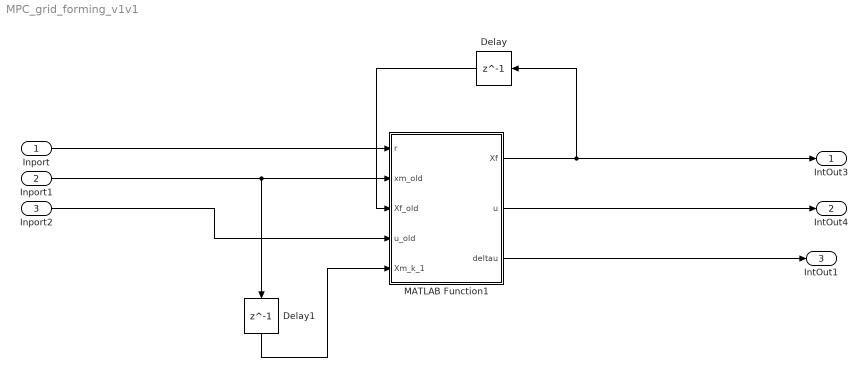
== matlab function MPC_grid_forming_v1v1/MATLAB Function1 ==
function [Xf,u,deltau] = fcn(r,xm_old,Xf_old,u_old,Xm_k_1)

in = [];
in = coder.load('Grid_forming.mat'); 
%in = coder.load('DC_volatge.mat'); 
%% there is issue there which need to be fixed %%%
gamma=[(in.u_max - u_old);(-in.u_min + u_old); in.deltau_max; -in.deltau_min];
eta=QPhild(in.Omega,in.Psi*(in.Xf+Xf_old),in.M,gamma)
%%
%eta = -(in.Omega\in.Psi)*(in.Xf+Xf_old)  %%% original %%% 

deltau=in.Lzerot*eta; %%%% input signal 

%%
u=in.up+u_old+deltau;
%%%%
y = xm_old;
xm = xm_old;
y_delta_k = y-Xm_k_1;
Xf=[y_delta_k;y-r];

/*
 * Academic License - for use in teaching, academic research, and meeting
 * course requirements at degree granting institutions only.  Not for
 * government, commercial, or other organizational use.
 *
 * File: MPC_grid_forming_v1v1.c
 *
 * Code generated for Simulink model 'MPC_grid_forming_v1v1'.
 *
 * Model version                  : 1.31
 * Simulink Coder version         : 9.2 (R2019b) 18-Jul-2019
 * C/C++ source code generated on : Tue Oct 26 07:50:22 2021
 *
 * Target selection: ert.tlc
 * Embedded hardware selection: 32-bit Generic
 * Code generation objectives: Unspecified
 * Validation result: Not run
 */

#include "MPC_grid_forming_v1v1.h"
#include "MPC_grid_forming_v1v1_private.h"

/* Block states (default storage) */
D_Work_MPC_grid_forming_v1v1 MPC_grid_forming_v1v1_DWork;

/* External inputs (root inport signals with default storage) */
ExternalInputs_MPC_grid_forming MPC_grid_forming_v1v1_U;

/* External outputs (root outports fed by signals with default storage) */
ExternalOutputs_MPC_grid_formin MPC_grid_forming_v1v1_Y;

/* Real-time model */
RT_MODEL_MPC_grid_forming_v1v1 MPC_grid_forming_v1v1_M_;
RT_MODEL_MPC_grid_forming_v1v1 *const MPC_grid_forming_v1v1_M =
  &MPC_grid_forming_v1v1_M_;

/* Forward declaration for local functions */
static void MPC_grid_forming_v1v1_xgetrf(real_T A[16], int32_T ipiv[4], int32_T *
  info);
static void MPC_grid_forming_v1v1_mldivide(const real_T A[16], real_T B[4]);
static void MPC_grid_forming_v1v_mldivide_p(const real_T A[16], real_T B[16]);

/* Function for MATLAB Function: '<Root>/MATLAB Function1' */
static void MPC_grid_forming_v1v1_xgetrf(real_T A[16], int32_T ipiv[4], int32_T *
  info)
{
  int32_T j;
  int32_T c;
  int32_T ix;
  real_T smax;
  int32_T k;
  int32_T iy;
  real_T y;
  int32_T c_ix;
  int32_T d;
  int32_T ijA;
  ipiv[0] = 1;
  ipiv[1] = 2;
  ipiv[2] = 3;
  ipiv[3] = 4;
  *info = 0;
  for (j = 0; j < 3; j++) {
    c = j * 5;
    iy = 0;
    ix = c;
    smax = fabs(A[c]);
    for (k = 2; k <= 4 - j; k++) {
      ix++;
      y = fabs(A[ix]);
      if (y > smax) {
        iy = k - 1;
        smax = y;
      }
    }

    if (A[c + iy] != 0.0) {
      if (iy != 0) {
        iy += j;
        ipiv[j] = iy + 1;
        smax = A[j];
        A[j] = A[iy];
        A[iy] = smax;
        ix = j + 4;
        iy += 4;
        smax = A[ix];
        A[ix] = A[iy];
        A[iy] = smax;
        ix += 4;
        iy += 4;
        smax = A[ix];
        A[ix] = A[iy];
        A[iy] = smax;
        ix += 4;
        iy += 4;
        smax = A[ix];
        A[ix] = A[iy];
        A[iy] = smax;
      }

      iy = (c - j) + 4;
      for (ix = c + 1; ix < iy; ix++) {
        A[ix] /= A[c];
      }
    } else {
      *info = j + 1;
    }

    iy = c;
    ix = c + 4;
    for (k = 0; k <= 2 - j; k++) {
      if (A[ix] != 0.0) {
        smax = -A[ix];
        c_ix = c + 1;
        d = (iy - j) + 8;
        for (ijA = iy + 5; ijA < d; ijA++) {
          A[ijA] += A[c_ix] * smax;
          c_ix++;
        }
      }

      ix += 4;
      iy += 4;
    }
  }

  if ((*info == 0) && (!(A[15] != 0.0))) {
    *info = 4;
  }
}

/* Function for MATLAB Function: '<Root>/MATLAB Function1' */
static void MPC_grid_forming_v1v1_mldivide(const real_T A[16], real_T B[4])
{
  real_T temp;
  real_T b_A[16];
  int32_T ipiv[4];
  int32_T info;
  memcpy(&b_A[0], &A[0], sizeof(real_T) << 4U);
  MPC_grid_forming_v1v1_xgetrf(b_A, ipiv, &info);
  if (ipiv[0] != 1) {
    temp = B[0];
    B[0] = B[ipiv[0] - 1];
    B[ipiv[0] - 1] = temp;
  }

  if (ipiv[1] != 2) {
    temp = B[1];
    B[1] = B[ipiv[1] - 1];
    B[ipiv[1] - 1] = temp;
  }

  if (ipiv[2] != 3) {
    temp = B[2];
    B[2] = B[ipiv[2] - 1];
    B[ipiv[2] - 1] = temp;
  }

  if (B[0] != 0.0) {
    for (info = 1; info + 1 < 5; info++) {
      B[info] -= B[0] * b_A[info];
    }
  }

  if (B[1] != 0.0) {
    for (info = 2; info + 1 < 5; info++) {
      B[info] -= b_A[info + 4] * B[1];
    }
  }

  if (B[2] != 0.0) {
    for (info = 3; info + 1 < 5; info++) {
      B[info] -= b_A[info + 8] * B[2];
    }
  }

  if (B[3] != 0.0) {
    B[3] /= b_A[15];
    for (info = 0; info < 3; info++) {
      B[info] -= b_A[info + 12] * B[3];
    }
  }

  if (B[2] != 0.0) {
    B[2] /= b_A[10];
    for (info = 0; info < 2; info++) {
      B[info] -= b_A[info + 8] * B[2];
    }
  }

  if (B[1] != 0.0) {
    B[1] /= b_A[5];
    B[0] -= B[1] * b_A[4];
  }

  if (B[0] != 0.0) {
    B[0] /= b_A[0];
  }
}

/* Function for MATLAB Function: '<Root>/MATLAB Function1' */
static void MPC_grid_forming_v1v_mldivide_p(const real_T A[16], real_T B[16])
{
  real_T temp;
  int32_T ip;
  real_T b_A[16];
  int32_T ipiv[4];
  int32_T info;
  int32_T i;
  int32_T tmp;
  memcpy(&b_A[0], &A[0], sizeof(real_T) << 4U);
  MPC_grid_forming_v1v1_xgetrf(b_A, ipiv, &info);
  for (info = 0; info < 3; info++) {
    if (info + 1 != ipiv[info]) {
      ip = ipiv[info] - 1;
      temp = B[info];
      B[info] = B[ip];
      B[ip] = temp;
      temp = B[info + 4];
      B[info + 4] = B[ip + 4];
      B[ip + 4] = temp;
      temp = B[info + 8];
      B[info + 8] = B[ip + 8];
      B[ip + 8] = temp;
      temp = B[info + 12];
      B[info + 12] = B[ip + 12];
      B[ip + 12] = temp;
    }
  }

  for (info = 0; info < 4; info++) {
    ip = info << 2;
    if (B[ip] != 0.0) {
      for (i = 2; i < 5; i++) {
        tmp = (i + ip) - 1;
        B[tmp] -= b_A[i - 1] * B[ip];
      }
    }

    if (B[ip + 1] != 0.0) {
      for (i = 3; i < 5; i++) {
        tmp = (i + ip) - 1;
        B[tmp] -= B[ip + 1] * b_A[i + 3];
      }
    }

    if (B[ip + 2] != 0.0) {
      B[ip + 3] -= B[ip + 2] * b_A[11];
    }
  }

  for (info = 0; info < 4; info++) {
    ip = info << 2;
    if (B[ip + 3] != 0.0) {
      B[ip + 3] /= b_A[15];
      for (i = 0; i < 3; i++) {
        tmp = i + ip;
        B[tmp] -= B[ip + 3] * b_A[i + 12];
      }
    }

    if (B[ip + 2] != 0.0) {
      B[ip + 2] /= b_A[10];
      for (i = 0; i < 2; i++) {
        tmp = i + ip;
        B[tmp] -= B[ip + 2] * b_A[i + 8];
      }
    }

    if (B[ip + 1] != 0.0) {
      B[ip + 1] /= b_A[5];
      B[ip] -= B[ip + 1] * b_A[4];
    }

    if (B[ip] != 0.0) {
      B[ip] /= b_A[0];
    }
  }
}

/* Model step function */
void MPC_grid_forming_v1v1_step(void)
{
  real_T b_gamma[4];
  real_T eta[4];
  real_T y[4];
  real_T kk;
  real_T P[16];
  real_T d[4];
  real_T b[16];
  static const real_T e[16] = { 0.00774590859744585, -0.0077456762201879269,
    0.0077454438499013206, -0.0077452114865858247, -0.00774590859744585,
    0.0077456762201879269, -0.0077454438499013206, 0.0077452114865858247,
    0.00774590859744585, -0.0077456762201879269, 0.0077454438499013206,
    -0.0077452114865858247, -0.00774590859744585, 0.0077456762201879269,
    -0.0077454438499013206, 0.0077452114865858247 };

  int32_T b_i;
  int32_T i;
  real_T rtb_Xf_idx_0;
  real_T rtb_Xf_idx_1;
  int32_T P_tmp;
  int32_T P_tmp_tmp;
  static const real_T c[16] = { -0.002000185860327016, 1.8582634387492393E-7,
    -1.8579236556403315E-7, 1.8575839208293112E-7, 1.8582634387492393E-7,
    -0.0020001857923671188, 1.8575839519194639E-7, -1.857244280940364E-7,
    -1.8579236556403315E-7, 1.8575839519194639E-7, -0.0020001857244296485,
    1.85690468932722E-7, 1.8575839208293112E-7, -1.857244280940364E-7,
    1.85690468932722E-7, -0.0020001856565145986 };

  static const real_T a[8] = { 0.0082398634660753, -0.0082384104982132413,
    0.00823695773184475, -0.0082355051669465787, 0.0010643471674100958,
    -0.001064171535856069, 0.0010639959276783147, -0.0010638203428742095 };

  static const real_T A_cons[16] = { 0.00774590859744585, -0.00774590859744585,
    0.00774590859744585, -0.00774590859744585, -0.0077456762201879269,
    0.0077456762201879269, -0.0077456762201879269, 0.0077456762201879269,
    0.0077454438499013206, -0.0077454438499013206, 0.0077454438499013206,
    -0.0077454438499013206, -0.0077452114865858247, 0.0077452114865858247,
    -0.0077452114865858247, 0.0077452114865858247 };

  static const real_T H[16] = { 0.002000185860327016, -1.8582634387492393E-7,
    1.8579236556403315E-7, -1.8575839208293112E-7, -1.8582634387492393E-7,
    0.0020001857923671188, -1.8575839519194639E-7, 1.857244280940364E-7,
    1.8579236556403315E-7, -1.8575839519194639E-7, 0.0020001857244296485,
    -1.85690468932722E-7, -1.8575839208293112E-7, 1.857244280940364E-7,
    -1.85690468932722E-7, 0.0020001856565145986 };

  boolean_T exitg1;

  /* MATLAB Function: '<Root>/MATLAB Function1' incorporates:
   *  Delay: '<Root>/Delay'
   *  Delay: '<Root>/Delay1'
   *  Inport: '<Root>/Inport'
   *  Inport: '<Root>/Inport1'
   *  Inport: '<Root>/Inport2'
   */
  /* MATLAB Function 'MATLAB Function1': '<S1>:1' */
  /* '<S1>:1:8' */
  /* '<S1>:1:12' */
  /* '<S1>:1:4' */
  /* '<S1>:1:7' */
  b_gamma[0] = 1.1 - MPC_grid_forming_v1v1_U.Inport2;
  b_gamma[1] = MPC_grid_forming_v1v1_U.Inport2 + 1.1;
  b_gamma[2] = 0.02;
  b_gamma[3] = 0.02;

  /* '<S1>:1:8' */
  kk = MPC_grid_forming_v1v1_DWork.Delay_DSTATE[0];
  rtb_Xf_idx_0 = MPC_grid_forming_v1v1_DWork.Delay_DSTATE[1];
  for (i = 0; i < 4; i++) {
    rtb_Xf_idx_1 = a[i + 4] * rtb_Xf_idx_0 + a[i] * kk;
    eta[i] = rtb_Xf_idx_1;
    y[i] = rtb_Xf_idx_1;
  }

  MPC_grid_forming_v1v1_mldivide(c, eta);
  kk = 0.0;
  for (i = 0; i < 4; i++) {
    if (((A_cons[i + 4] * eta[1] + A_cons[i] * eta[0]) + A_cons[i + 8] * eta[2])
        + A_cons[i + 12] * eta[3] > b_gamma[i]) {
      kk++;
    }
  }

  if (!(kk == 0.0)) {
    memcpy(&b[0], &e[0], sizeof(real_T) << 4U);
    MPC_grid_forming_v1v_mldivide_p(H, b);
    for (i = 0; i < 4; i++) {
      for (b_i = 0; b_i < 4; b_i++) {
        P_tmp_tmp = b_i << 2;
        P_tmp = i + P_tmp_tmp;
        P[P_tmp] = 0.0;
        P[P_tmp] += b[P_tmp_tmp] * A_cons[i];
        P[P_tmp] += b[P_tmp_tmp + 1] * A_cons[i + 4];
        P[P_tmp] += b[P_tmp_tmp + 2] * A_cons[i + 8];
        P[P_tmp] += b[P_tmp_tmp + 3] * A_cons[i + 12];
      }

      eta[i] = y[i];
    }

    MPC_grid_forming_v1v1_mldivide(H, eta);
    for (i = 0; i < 4; i++) {
      d[i] = (((A_cons[i + 4] * eta[1] + A_cons[i] * eta[0]) + A_cons[i + 8] *
               eta[2]) + A_cons[i + 12] * eta[3]) + b_gamma[i];
      b_gamma[i] = 0.0;
    }

    i = 0;
    exitg1 = false;
    while ((!exitg1) && (i < 38)) {
      kk = 0.0;
      for (b_i = 0; b_i < 4; b_i++) {
        rtb_Xf_idx_0 = b_gamma[b_i];
        P_tmp_tmp = (b_i << 2) + b_i;
        rtb_Xf_idx_1 = -(((((P[b_i + 4] * b_gamma[1] + P[b_i] * b_gamma[0]) +
                            P[b_i + 8] * b_gamma[2]) + P[b_i + 12] * b_gamma[3])
                          - P[P_tmp_tmp] * b_gamma[b_i]) + d[b_i]) / P[P_tmp_tmp];
        if ((0.0 > rtb_Xf_idx_1) || rtIsNaN(rtb_Xf_idx_1)) {
          b_gamma[b_i] = 0.0;
        } else {
          b_gamma[b_i] = rtb_Xf_idx_1;
        }

        rtb_Xf_idx_0 = b_gamma[b_i] - rtb_Xf_idx_0;
        kk += rtb_Xf_idx_0 * rtb_Xf_idx_0;
      }

      if (kk < 1.0E-7) {
        exitg1 = true;
      } else {
        i++;
      }
    }

    memcpy(&b[0], &e[0], sizeof(real_T) << 4U);
    MPC_grid_forming_v1v_mldivide_p(H, b);
    MPC_grid_forming_v1v1_mldivide(c, y);
    for (b_i = 0; b_i < 4; b_i++) {
      eta[b_i] = y[b_i] - (((b[b_i + 4] * b_gamma[1] + b[b_i] * b_gamma[0]) +
                            b[b_i + 8] * b_gamma[2]) + b[b_i + 12] * b_gamma[3]);
    }
  }

  /* '<S1>:1:12' */
  kk = ((0.00774590859744585 * eta[0] + -0.0077456762201879269 * eta[1]) +
        0.0077454438499013206 * eta[2]) + -0.0077452114865858247 * eta[3];

  /* '<S1>:1:15' */
  /* '<S1>:1:19' */
  /* '<S1>:1:20' */
  rtb_Xf_idx_0 = MPC_grid_forming_v1v1_U.Inport1 -
    MPC_grid_forming_v1v1_DWork.Delay1_DSTATE;
  rtb_Xf_idx_1 = MPC_grid_forming_v1v1_U.Inport1 -
    MPC_grid_forming_v1v1_U.Inport;

  /* Outport: '<Root>/IntOut4' incorporates:
   *  Inport: '<Root>/Inport2'
   *  MATLAB Function: '<Root>/MATLAB Function1'
   */
  MPC_grid_forming_v1v1_Y.u = MPC_grid_forming_v1v1_U.Inport2 + kk;

  /* Outport: '<Root>/IntOut1' incorporates:
   *  MATLAB Function: '<Root>/MATLAB Function1'
   */
  MPC_grid_forming_v1v1_Y.delta_u = kk;

  /* Outport: '<Root>/IntOut3' */
  MPC_grid_forming_v1v1_Y.Xf[0] = rtb_Xf_idx_0;

  /* Update for Delay: '<Root>/Delay' incorporates:
   *  Outport: '<Root>/IntOut3'
   */
  MPC_grid_forming_v1v1_DWork.Delay_DSTATE[0] = rtb_Xf_idx_0;

  /* Outport: '<Root>/IntOut3' */
  MPC_grid_forming_v1v1_Y.Xf[1] = rtb_Xf_idx_1;

  /* Update for Delay: '<Root>/Delay' incorporates:
   *  Outport: '<Root>/IntOut3'
   */
  MPC_grid_forming_v1v1_DWork.Delay_DSTATE[1] = rtb_Xf_idx_1;

  /* Update for Delay: '<Root>/Delay1' incorporates:
   *  Inport: '<Root>/Inport1'
   */
  MPC_grid_forming_v1v1_DWork.Delay1_DSTATE = MPC_grid_forming_v1v1_U.Inport1;
}
